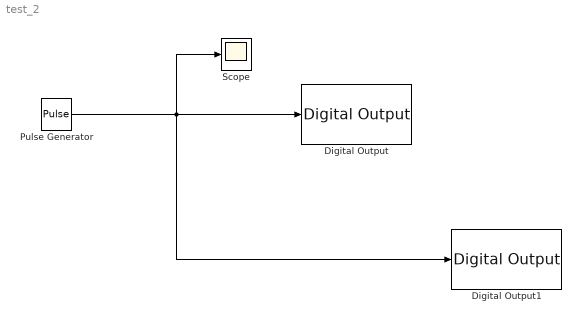
/*
 * File: test_2.c
 *
 * Code generated for Simulink model 'test_2'.
 *
 * Model version                  : 1.2
 * Simulink Coder version         : 24.1 (R2024a) 19-Nov-2023
 * C/C++ source code generated on : Fri Feb 28 20:51:23 2025
 *
 * Target selection: ert.tlc
 * Embedded hardware selection: Texas Instruments->C2000
 * Code generation objectives: Unspecified
 * Validation result: Not run
 */

#include "test_2.h"
#include "rtwtypes.h"
#include <string.h>

/* Block signals (default storage) */
B_test_2_T test_2_B;

/* Block states (default storage) */
DW_test_2_T test_2_DW;

/* Real-time model */
static RT_MODEL_test_2_T test_2_M_;
RT_MODEL_test_2_T *const test_2_M = &test_2_M_;

/* Model step function */
void test_2_step(void)
{
  /* DiscretePulseGenerator: '<Root>/Pulse Generator' */
  test_2_B.PulseGenerator = (test_2_DW.clockTickCounter <
    test_2_P.PulseGenerator_Duty) && (test_2_DW.clockTickCounter >= 0L) ?
    test_2_P.PulseGenerator_Amp : 0.0;

  /* DiscretePulseGenerator: '<Root>/Pulse Generator' */
  if (test_2_DW.clockTickCounter >= test_2_P.PulseGenerator_Period - 1.0) {
    test_2_DW.clockTickCounter = 0L;
  } else {
    test_2_DW.clockTickCounter++;
  }

  /* S-Function (c280xgpio_do): '<Root>/Digital Output' */
  {
    GpioDataRegs.GPATOGGLE.bit.GPIO31 = (uint16_T)(test_2_B.PulseGenerator != 0);
  }

  /* S-Function (c280xgpio_do): '<Root>/Digital Output1' */
  {
    GpioDataRegs.GPBTOGGLE.bit.GPIO34 = (uint16_T)(test_2_B.PulseGenerator != 0);
  }
}
